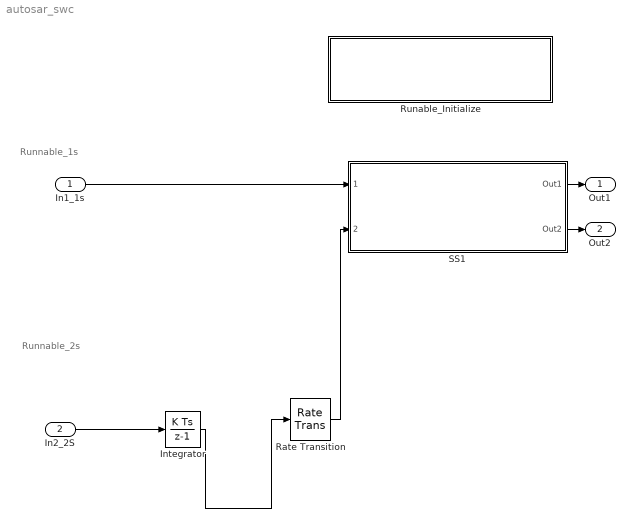
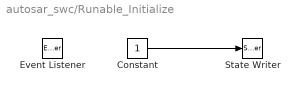
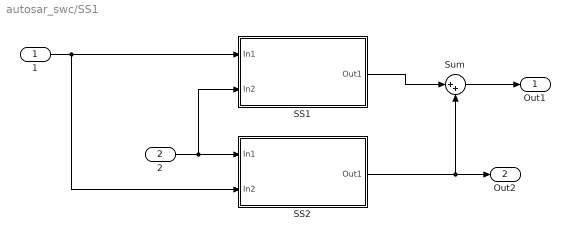
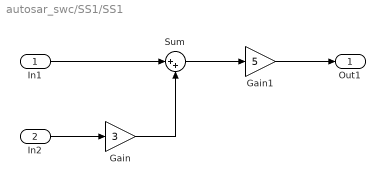
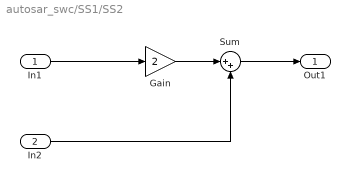
/*
 * File: autosar_swc.c
 *
 * Code generated for Simulink model 'autosar_swc'.
 *
 * Model version                  : 1.37
 * Simulink Coder version         : 9.5 (R2021a) 14-Nov-2020
 * C/C++ source code generated on : Sun Aug 10 14:22:19 2025
 *
 * Target selection: autosar.tlc
 * Embedded hardware selection: Intel->x86-64 (Windows64)
 * Code generation objectives:
 *    1. Execution efficiency
 *    2. RAM efficiency
 * Validation result: Not run
 */

#include "autosar_swc.h"

/* Block signals and states (default storage) */
DW rtDW;

/* Model step function for TID0 */
void Runnable_1s(void)                 /* Sample time: [1.0s, 0.0s] */
{
  float64 rtb_RateTransition;
  float64 rtb_Sum_j;

  /* RateTransition: '<Root>/Rate Transition' */
  rtb_RateTransition = Rte_IrvIRead_Runnable_1s_IRV1();

  /* Sum: '<S4>/Sum' incorporates:
   *  Gain: '<S4>/Gain'
   *  Inport: '<Root>/In1_1s'
   */
  rtb_Sum_j = 2.0 * rtb_RateTransition + Rte_IRead_Runnable_1s_In1_1s_In1_1s();

  /* Outport: '<Root>/Out1' incorporates:
   *  Gain: '<S3>/Gain'
   *  Gain: '<S3>/Gain1'
   *  Inport: '<Root>/In1_1s'
   *  Sum: '<S2>/Sum'
   *  Sum: '<S3>/Sum'
   */
  Rte_IWrite_Runnable_1s_Out1_Out1(5.0 * (Rte_IRead_Runnable_1s_In1_1s_In1_1s()
    + 3.0 * rtb_RateTransition) + rtb_Sum_j);

  /* Outport: '<Root>/Out2' */
  Rte_IWrite_Runnable_1s_Out2_Out2(rtb_Sum_j);
}

/* Model step function for TID1 */
void Runnable_2s(void)                 /* Sample time: [2.0s, 0.0s] */
{
  /* RateTransition: '<Root>/Rate Transition' incorporates:
   *  DiscreteIntegrator: '<Root>/Integrator'
   */
  Rte_IrvIWrite_Runnable_2S_IRV1(rtDW.Integrator_DSTATE);

  /* Update for DiscreteIntegrator: '<Root>/Integrator' incorporates:
   *  Inport: '<Root>/In2_2S'
   */
  rtDW.Integrator_DSTATE += 2.0 * Rte_IRead_Runnable_2S_In2_2S_In2_2S();
}
